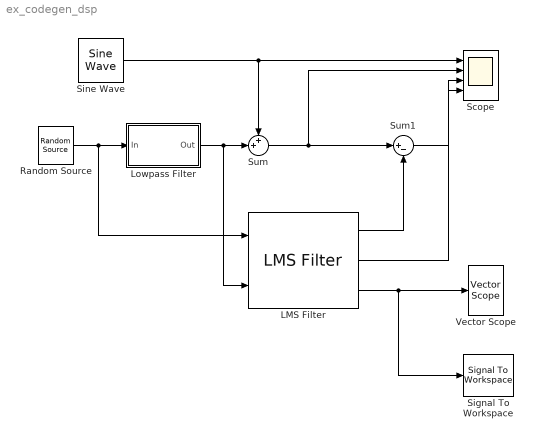
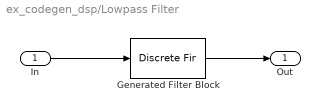
/*
 * ex_codegen_dsp.c
 *
 * Code generation for model "ex_codegen_dsp".
 *
 * Model version              : 1.12
 * Simulink Coder version : 8.4 (R2013a) 13-Feb-2013
 * C source code generated on : Sun Mar  1 08:43:59 2015
 *
 * Target selection: grt.tlc
 * Note: GRT includes extra infrastructure and instrumentation for prototyping
 * Embedded hardware selection: 32-bit Generic
 * Code generation objectives: Unspecified
 * Validation result: Not run
 */
#include "ex_codegen_dsp.h"
#include "ex_codegen_dsp_private.h"

/* Block signals (auto storage) */
B_ex_codegen_dsp_T ex_codegen_dsp_B;

/* Block states (auto storage) */
DW_ex_codegen_dsp_T ex_codegen_dsp_DW;

/* Real-time model */
RT_MODEL_ex_codegen_dsp_T ex_codegen_dsp_M_;
RT_MODEL_ex_codegen_dsp_T *const ex_codegen_dsp_M = &ex_codegen_dsp_M_;
void RandSrcInitState_GZ(const uint32_T seed[], uint32_T state[], int32_T nChans)
{
  int32_T i;

  /* InitializeConditions for S-Function (sdsprandsrc2): '<Root>/Random Source' */
  /* RandSrcInitState_GZ */
  for (i = 0; i < nChans; i++) {
    state[i << 1] = 362436069U;
    state[(i << 1) + 1] = seed[i] == 0U ? 521288629U : seed[i];
  }

  /* End of InitializeConditions for S-Function (sdsprandsrc2): '<Root>/Random Source' */
}

void RandSrc_GZ_D(real_T y[], const real_T mean[], int32_T meanLen, const real_T
                  xstd[], int32_T xstdLen, uint32_T state[], int32_T nChans,
                  int32_T nSamps)
{
  int32_T i;
  int32_T j;
  real_T r;
  real_T x;
  real_T s;
  real_T y_0;
  int32_T chan;
  real_T std;
  uint32_T icng;
  uint32_T jsr;
  int32_T samp;
  real_T mean_0;
  static const real_T vt[65] = { 0.340945, 0.4573146, 0.5397793, 0.6062427,
    0.6631691, 0.7136975, 0.7596125, 0.8020356, 0.8417227, 0.8792102, 0.9148948,
    0.9490791, 0.9820005, 1.0138492, 1.044781, 1.0749254, 1.1043917, 1.1332738,
    1.161653, 1.189601, 1.2171815, 1.2444516, 1.2714635, 1.298265, 1.3249008,
    1.3514125, 1.3778399, 1.4042211, 1.4305929, 1.4569915, 1.4834527, 1.5100122,
    1.5367061, 1.5635712, 1.5906454, 1.617968, 1.6455802, 1.6735255, 1.7018503,
    1.7306045, 1.7598422, 1.7896223, 1.8200099, 1.851077, 1.8829044, 1.9155831,
    1.9492166, 1.9839239, 2.0198431, 2.0571356, 2.095993, 2.136645, 2.1793713,
    2.2245175, 2.2725186, 2.3239338, 2.3795008, 2.4402218, 2.5075117, 2.5834658,
    2.6713916, 2.7769942, 2.7769942, 2.7769942, 2.7769942 };

  /* S-Function (sdsprandsrc2): '<Root>/Random Source' */
  /* RandSrc_GZ_D */
  for (chan = 0; chan < nChans; chan++) {
    mean_0 = mean[meanLen > 1 ? chan : 0];
    std = xstd[xstdLen > 1 ? chan : 0];
    icng = state[chan << 1];
    jsr = state[(chan << 1) + 1];
    for (samp = 0; samp < nSamps; samp++) {
      icng = 69069U * icng + 1234567U;
      jsr ^= jsr << 13;
      jsr ^= jsr >> 17;
      jsr ^= jsr << 5;
      i = (int32_T)(icng + jsr);
      j = (i & 63) + 1;
      r = (real_T)i * 4.6566128730773926E-10 * vt[j];
      if (!(fabs(r) <= vt[j - 1])) {
        x = (fabs(r) - vt[j - 1]) / (vt[j] - vt[j - 1]);
        icng = 69069U * icng + 1234567U;
        jsr ^= jsr << 13;
        jsr ^= jsr >> 17;
        jsr ^= jsr << 5;
        y_0 = (real_T)(int32_T)(icng + jsr) * 2.328306436538696E-10 + 0.5;
        s = x + y_0;
        if (s > 1.301198) {
          r = r < 0.0 ? 0.4878992 * x - 0.4878992 : 0.4878992 - 0.4878992 * x;
        } else {
          if (!(s <= 0.9689279)) {
            x = 0.4878992 - 0.4878992 * x;
            if (y_0 > 12.67706 - exp(-0.5 * x * x) * 12.37586) {
              r = r < 0.0 ? -x : x;
            } else {
              if (!(exp(-0.5 * vt[j] * vt[j]) + y_0 * 0.01958303 / vt[j] <= exp(
                    -0.5 * r * r))) {
                do {
                  icng = 69069U * icng + 1234567U;
                  jsr ^= jsr << 13;
                  jsr ^= jsr >> 17;
                  jsr ^= jsr << 5;
                  x = log((real_T)(int32_T)(icng + jsr) * 2.328306436538696E-10
                          + 0.5) / 2.776994;
                  icng = 69069U * icng + 1234567U;
                  jsr ^= jsr << 13;
                  jsr ^= jsr >> 17;
                  jsr ^= jsr << 5;
                } while (log((real_T)(int32_T)(icng + jsr) *
                             2.328306436538696E-10 + 0.5) * -2.0 <= x * x);

                r = r < 0.0 ? x - 2.776994 : 2.776994 - x;
              }
            }
          }
        }
      }

      y[chan * nSamps + samp] = std * r + mean_0;
    }

    state[chan << 1] = icng;
    state[(chan << 1) + 1] = jsr;
  }

  /* End of S-Function (sdsprandsrc2): '<Root>/Random Source' */
}

void MWSPCGlmsnw_D(const real_T x[], const real_T d[], const real_T mu, uint32_T
                   *startIdx, real_T xBuf[], real_T wBuf[], const int32_T wLen,
                   const real_T leakFac, const int32_T xLen, real_T y[], real_T
                   eY[], real_T wY[])
{
  int32_T i;
  int32_T j;
  real_T divideResult;
  real_T bufEnergy;
  int32_T j_0;

  /* S-Function (sdsplms): '<Root>/LMS Filter' */
  for (i = 0; i < xLen; i++) {
    y[i] = 0.0;
  }

  for (i = 0; i < xLen; i++) {
    bufEnergy = 0.0;

    /* Copy the current sample at the END of the circular buffer and update BuffStartIdx
     */
    xBuf[*startIdx] = x[i];
    (*startIdx)++;
    if (*startIdx == (uint32_T)wLen) {
      *startIdx = 0U;
    }

    /* Multiply wgtBuff_vector (not yet updated) and inBuff_vector
     */
    /* Get the energy of the signal in updated buffer
     */
    j_0 = 0;
    for (j = (int32_T)*startIdx; j < wLen; j++) {
      y[i] += wBuf[j_0] * xBuf[j];
      bufEnergy += xBuf[j] * xBuf[j];
      j_0++;
    }

    for (j = 0; j < (int32_T)*startIdx; j++) {
      y[i] += wBuf[j_0] * xBuf[j];
      bufEnergy += xBuf[j] * xBuf[j];
      j_0++;
    }

    /* Ger error for the current sample
     */
    eY[i] = d[i] - y[i];

    /* Update weight-vector for next input sample
     */
    j_0 = 0;
    for (j = (int32_T)*startIdx; j < wLen; j++) {
      divideResult = xBuf[j] / (bufEnergy + 2.2204460492503131E-16);
      wBuf[j_0] = eY[i] * divideResult * mu + leakFac * wBuf[j_0];
      j_0++;
    }

    for (j = 0; j < (int32_T)*startIdx; j++) {
      divideResult = xBuf[j] / (bufEnergy + 2.2204460492503131E-16);
      wBuf[j_0] = eY[i] * divideResult * mu + leakFac * wBuf[j_0];
      j_0++;
    }
  }

  j_0 = wLen;
  for (j = 0; j < wLen; j++) {
    wY[j] = wBuf[j_0 - 1];
    j_0--;
  }

  /* End of S-Function (sdsplms): '<Root>/LMS Filter' */
}

/* Model output function */
static void ex_codegen_dsp_output(void)
{
  /* local block i/o variables */
  real_T rtb_SineWave;
  real_T rtb_Sum;
  real_T rtb_LMSFilter_o2;
  real_T rtb_Sum1;
  int32_T cff;
  real_T acc;
  int32_T j;

  /* S-Function (sdspsine2): '<Root>/Sine Wave' */
  rtb_SineWave = ex_codegen_dsp_P.SineWave_Amplitude * sin
    (ex_codegen_dsp_DW.SineWave_AccFreqNorm);

  /* Update accumulated normalized freq value
     for next sample.  Keep in range [0 2*pi) */
  ex_codegen_dsp_DW.SineWave_AccFreqNorm += ex_codegen_dsp_P.SineWave_Frequency *
    0.31415926535897931;
  if (ex_codegen_dsp_DW.SineWave_AccFreqNorm >= 6.2831853071795862) {
    ex_codegen_dsp_DW.SineWave_AccFreqNorm -= 6.2831853071795862;
  } else {
    if (ex_codegen_dsp_DW.SineWave_AccFreqNorm < 0.0) {
      ex_codegen_dsp_DW.SineWave_AccFreqNorm += 6.2831853071795862;
    }
  }

  /* End of S-Function (sdspsine2): '<Root>/Sine Wave' */

  /* S-Function (sdsprandsrc2): '<Root>/Random Source' */
  RandSrc_GZ_D(&ex_codegen_dsp_B.RandomSource,
               &ex_codegen_dsp_P.RandomSource_MeanRTP, 1,
               &ex_codegen_dsp_P.RandomSource_VarianceRTP, 1,
               ex_codegen_dsp_DW.RandomSource_STATE_DWORK, 1, 1);

  /* DiscreteFir: '<S1>/Generated Filter Block' */
  acc = ex_codegen_dsp_B.RandomSource *
    ex_codegen_dsp_P.GeneratedFilterBlock_Coefficien[0];
  cff = 1;
  for (j = ex_codegen_dsp_DW.GeneratedFilterBlock_circBuf; j < 31; j++) {
    acc += ex_codegen_dsp_DW.GeneratedFilterBlock_states[j] *
      ex_codegen_dsp_P.GeneratedFilterBlock_Coefficien[cff];
    cff++;
  }

  for (j = 0; j < ex_codegen_dsp_DW.GeneratedFilterBlock_circBuf; j++) {
    acc += ex_codegen_dsp_DW.GeneratedFilterBlock_states[j] *
      ex_codegen_dsp_P.GeneratedFilterBlock_Coefficien[cff];
    cff++;
  }

  ex_codegen_dsp_B.GeneratedFilterBlock = acc;

  /* End of DiscreteFir: '<S1>/Generated Filter Block' */

  /* Sum: '<Root>/Sum' */
  rtb_Sum = rtb_SineWave + ex_codegen_dsp_B.GeneratedFilterBlock;

  /* S-Function (sdsplms): '<Root>/LMS Filter' */
  MWSPCGlmsnw_D(&ex_codegen_dsp_B.RandomSource,
                &ex_codegen_dsp_B.GeneratedFilterBlock,
                ex_codegen_dsp_P.LMSFilter_MU_RTP,
                &ex_codegen_dsp_DW.LMSFilter_BUFF_IDX_DWORK,
                &ex_codegen_dsp_DW.LMSFilter_IN_BUFFER_DWORK[0U],
                &ex_codegen_dsp_DW.LMSFilter_WGT_IC_DWORK[0U], 32,
                ex_codegen_dsp_P.LMSFilter_LEAKAGE_RTP, 1, &rtb_Sum1,
                &rtb_LMSFilter_o2, &ex_codegen_dsp_B.LMSFilter_o3[0U]);

  /* Sum: '<Root>/Sum1' */
  rtb_Sum1 = rtb_Sum - rtb_Sum1;

  /* SignalToWorkspace: '<Root>/Signal To Workspace' */
  rt_UpdateLogVar((LogVar *)(LogVar*)
                  (ex_codegen_dsp_DW.SignalToWorkspace_PWORK.LoggedData),
                  ex_codegen_dsp_B.LMSFilter_o3, 0);
}

/* Model update function */
static void ex_codegen_dsp_update(void)
{
  /* Update for DiscreteFir: '<S1>/Generated Filter Block' */
  ex_codegen_dsp_DW.GeneratedFilterBlock_circBuf--;
  if (ex_codegen_dsp_DW.GeneratedFilterBlock_circBuf < 0) {
    ex_codegen_dsp_DW.GeneratedFilterBlock_circBuf = 30;
  }

  ex_codegen_dsp_DW.GeneratedFilterBlock_states[ex_codegen_dsp_DW.GeneratedFilterBlock_circBuf]
    = ex_codegen_dsp_B.RandomSource;

  /* End of Update for DiscreteFir: '<S1>/Generated Filter Block' */

  /* Update absolute time for base rate */
  /* The "clockTick0" counts the number of times the code of this task has
   * been executed. The absolute time is the multiplication of "clockTick0"
   * and "Timing.stepSize0". Size of "clockTick0" ensures timer will not
   * overflow during the application lifespan selected.
   * Timer of this task consists of two 32 bit unsigned integers.
   * The two integers represent the low bits Timing.clockTick0 and the high bits
   * Timing.clockTickH0. When the low bit overflows to 0, the high bits increment.
   */
  if (!(++ex_codegen_dsp_M->Timing.clockTick0)) {
    ++ex_codegen_dsp_M->Timing.clockTickH0;
  }

  ex_codegen_dsp_M->Timing.t[0] = ex_codegen_dsp_M->Timing.clockTick0 *
    ex_codegen_dsp_M->Timing.stepSize0 + ex_codegen_dsp_M->Timing.clockTickH0 *
    ex_codegen_dsp_M->Timing.stepSize0 * 4294967296.0;
}
